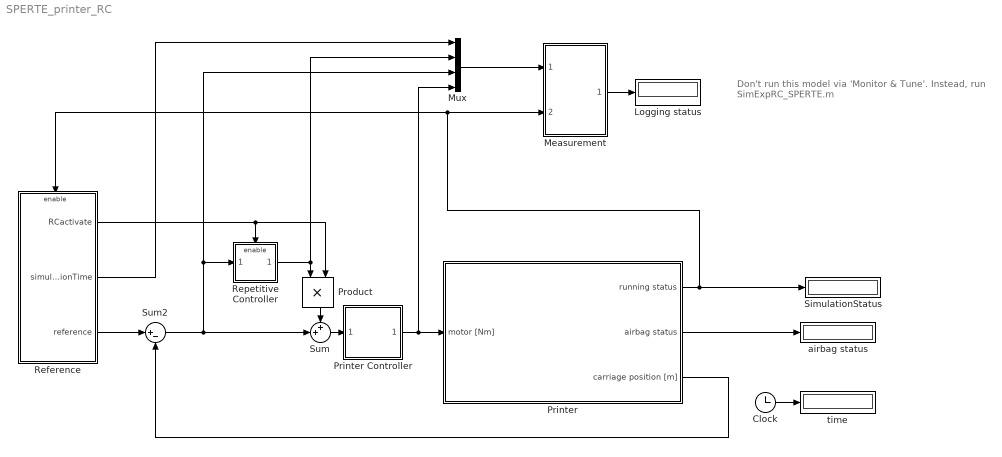
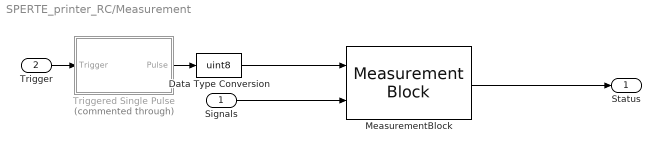
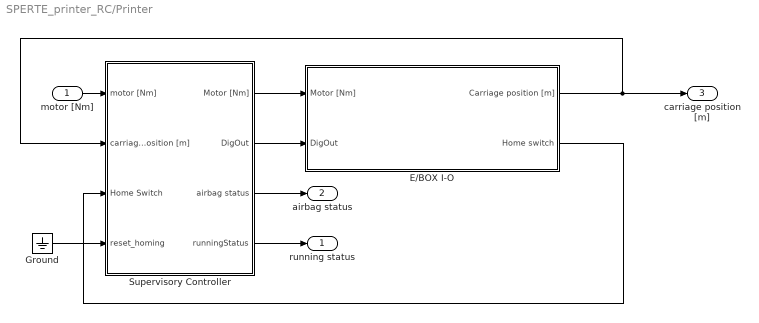
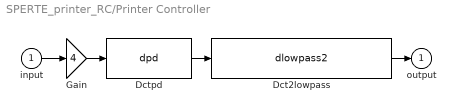
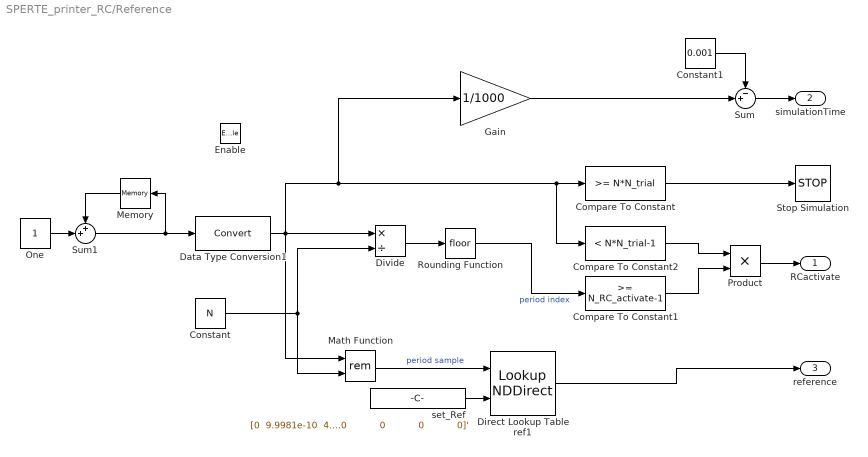
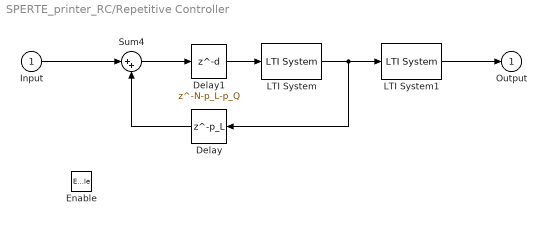
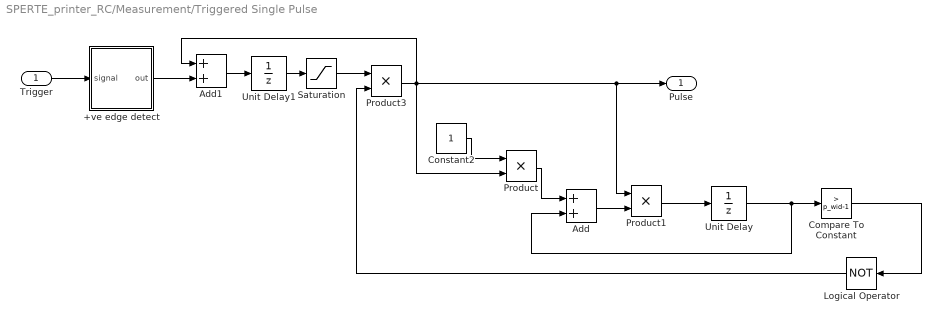
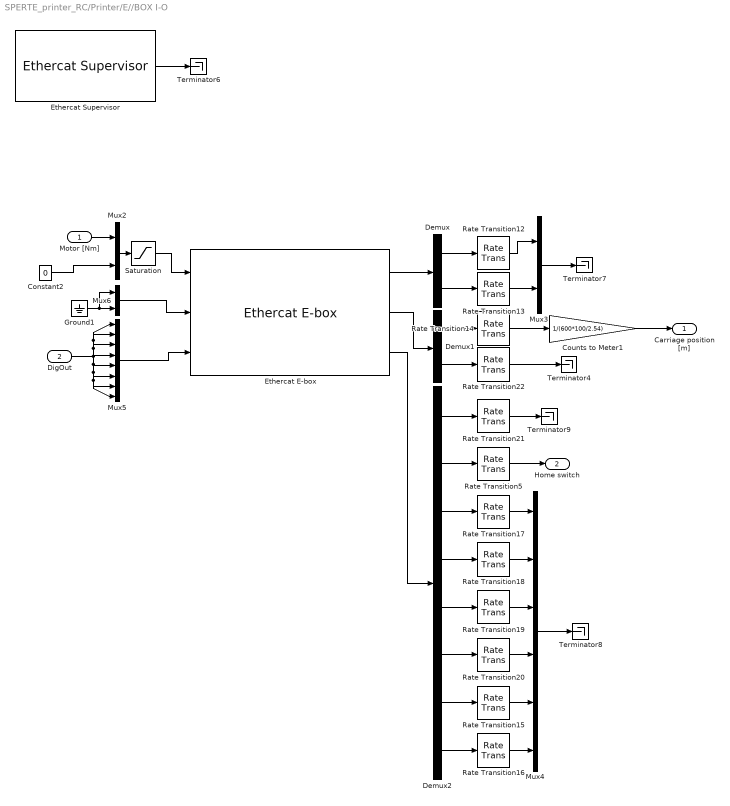
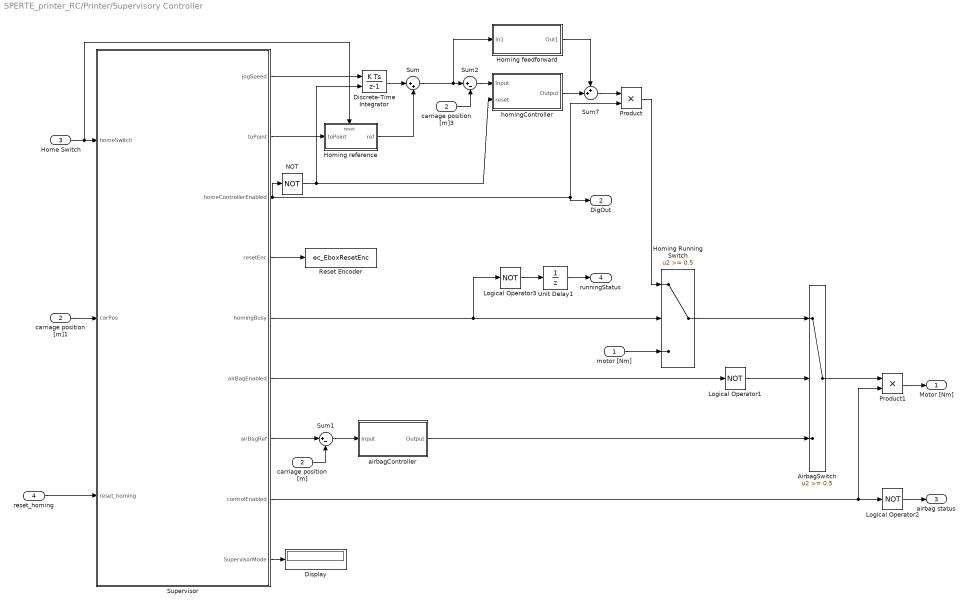
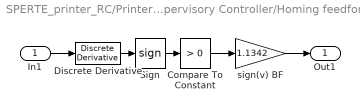
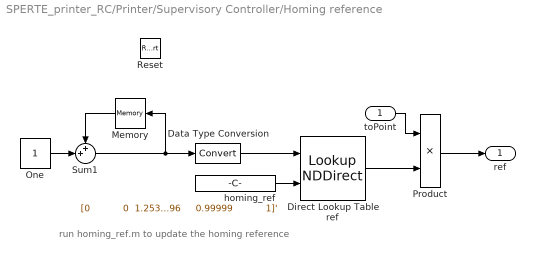
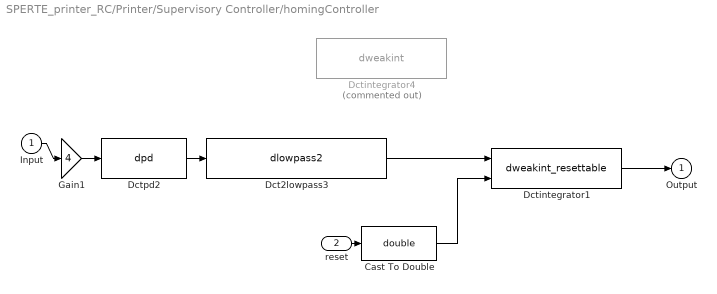
== system SPERTE_printer_RC/Measurement/Triggered Single Pulse/+ve edge detect ==
  note: Edge
  signal : Inport
  Delay Input1 : UnitDelay  Description=Store in Global RAM  DisableCoverage=on  SampleTime=-1  HasFrameUpgradeWarning=on
  FixPt Relational Operator : RelationalOperator  Operator=>  OutDataTypeStr=fixdt(0, 8)  ZeroCross=off  InputSameDT=off
  Positive : simulink/Logic and Bit Operations/Compare To Zero  relop=>  OutDataTypeStr=uint8  ZeroCross=off
  out : Outport
  wires:
  Delay Input1/1 -> FixPt Relational Operator/2  "U(k-1)"
  Positive/1 -> Delay Input1/1, FixPt Relational Operator/1  "U(k)"
  FixPt Relational Operator/1 -> out/1
  signal/1 -> Positive/1

== system SPERTE_printer_RC/Printer/Supervisory Controller/airbagController ==
  Input : Inport
  Dct2lowpass3 : S-Function  FunctionName=dlowpass2  Parameters=f_den, b_den, 0.001  SFunctionDeploymentMode=off  EnableBusSupport=off  mask(dctools){f_den=40, b_den=0.7}
      mask prompts: f_den "Pole [Hz]"; b_den "Damping pole [-]"
      mask help: This block implements a discrete time 2nd order lowpass filter.
  Dctpd2 : S-Function  FunctionName=dpd  Parameters=kp, kv, 0.001  SFunctionDeploymentMode=off  EnableBusSupport=off  mask(dctools){kp=40, kv=1}
      mask help: This block implements a discrete time pd filter.
  Gain1 : Gain  Gain=4  SaturateOnIntegerOverflow=on  OutDataTypeStr=Inherit: Same as input  ParamDataTypeStr=Inherit: Same as input
  Output : Outport
  wires:
  Input/1 -> Gain1/1
  Gain1/1 -> Dctpd2/1
  Dctpd2/1 -> Dct2lowpass3/1
  Dct2lowpass3/1 -> Output/1

== stateflow chart SPERTE_printer_RC/Printer/Supervisory Controller/Supervisor ==
  state AirbagLeft
    entry:
    airBagEnabled = 1;
    airBagRef=-0.01;
  state DisableOutputs
    entry:
    controlEnabled=0;
  state Homing
    entry:
    %Set jog speed and homing state
    toPoint = 0;
    homingBusy = 1;
    jogSpeed = -0.2;
    homeControllerEnabled=1;
  state AirbagRight
    entry:
    airBagEnabled = 1;
    airBagRef=0.35;
  state EnableRunAndSafety
    entry:
    resetEnc=0;
    homingBusy=0;
  state MovetoX0
    entry:
    jogSpeed = 0.0;
    toPoint = 0.06;
  state ResetEnc
    entry:
    resetEnc=1;
  state DisableControl
    entry:
    homeControllerEnabled=0;
  (default) -> Homing
  AirbagLeft -> DisableOutputs : after(1,sec)
  AirbagRight -> DisableOutputs : after(1,sec)
  EnableRunAndSafety -> Homing [order 1] : [reset_homing]
  EnableRunAndSafety -> AirbagLeft [order 2] : [carPos<-0.01]
  Homing -> MovetoX0 : %Transition if homeswitch becomes high [homeSwitch]
  EnableRunAndSafety -> AirbagRight [order 3] : [carPos>0.35]
  ResetEnc -> EnableRunAndSafety : after(0.1,sec)
  MovetoX0 -> DisableControl : %Allow time for moving after(1,sec)
  DisableControl -> ResetEnc : %Allow settling of belt after(0.5,sec)
  data: jogSpeed output double; toPoint output double; homeControllerEnabled output double; resetEnc output double; homingBusy output double =1; homeSwitch input double; carPos input double; airBagEnabled output double =0; airBagRef output double =0; controlEnabled output double =1; reset_homing input; SupervisorMode output Enum: SupervisorModeType

/*
 * SPERTE_printer_RC.c
 *
 * Academic License - for use in teaching, academic research, and meeting
 * course requirements at degree granting institutions only.  Not for
 * government, commercial, or other organizational use.
 *
 * Code generation for model "SPERTE_printer_RC".
 *
 * Model version              : 13.1
 * Simulink Coder version : 25.2 (R2025b) 28-Jul-2025
 * C source code generated on : Wed Apr 29 17:28:11 2026
 *
 * Target selection: ert.tlc
 * Note: GRT includes extra infrastructure and instrumentation for prototyping
 * Embedded hardware selection: ARM Compatible->ARM Cortex-A (64-bit)
 * Code generation objectives: Unspecified
 * Validation result: Not run
 */

#include "SPERTE_printer_RC.h"
#include "SPERTE_printer_RC_types.h"
#include "rtwtypes.h"
#include <stddef.h>
#include "SPERTE_printer_RC_private.h"
#include <math.h>
#include "rt_nonfinite.h"
#include <string.h>
#include <stdio.h>
#include <stdlib.h>
#include "zero_crossing_types.h"
#include <float.h>

/* Named constants for MATLAB Function: '<S6>/SPERTE_measurement_function' */
#define SPERTE_printer_RC_CALL_EVENT   (-1)

/* Block signals (default storage) */
B_SPERTE_printer_RC_T SPERTE_printer_RC_B;

/* Block states (default storage) */
DW_SPERTE_printer_RC_T SPERTE_printer_RC_DW;

/* Previous zero-crossings (trigger) states */
PrevZCX_SPERTE_printer_RC_T SPERTE_printer_RC_PrevZCX;

/* Real-time model */
static RT_MODEL_SPERTE_printer_RC_T SPERTE_printer_RC_M_;
RT_MODEL_SPERTE_printer_RC_T *const SPERTE_printer_RC_M = &SPERTE_printer_RC_M_;

/* Forward declaration for local functions */
static void SPERTE_printer_R_emxInit_char_T(emxArray_char_T_SPERTE_printe_T
  **pEmxArray, int32_T numDimensions);
static void SPERTE_emxEnsureCapacity_char_T(emxArray_char_T_SPERTE_printe_T
  *emxArray, int32_T oldNumel);
static void SPERTE_printer_R_emxFree_char_T(emxArray_char_T_SPERTE_printe_T
  **pEmxArray);
static int8_T SPERTE_printer_RC_filedata(void);
static int8_T SPERTE_printer_RC_cfopen(const emxArray_char_T_SPERTE_printe_T
  *cfilename, const char_T *cpermission);
static int32_T SPERTE_printer_RC_cfclose(real_T fid);
real_T rt_remd_snf(real_T u0, real_T u1)
{
  real_T q;
  real_T y;
  if (rtIsNaN(u0) || rtIsNaN(u1) || rtIsInf(u0)) {
    y = (rtNaN);
  } else if (rtIsInf(u1)) {
    y = u0;
  } else {
    if (u1 < 0.0) {
      q = ceil(u1);
    } else {
      q = floor(u1);
    }

    if ((u1 != 0.0) && (u1 != q)) {
      q = fabs(u0 / u1);
      if (!(fabs(q - floor(q + 0.5)) > DBL_EPSILON * q)) {
        y = 0.0 * u0;
      } else {
        y = fmod(u0, u1);
      }
    } else {
      y = fmod(u0, u1);
    }
  }

  return y;
}

static void SPERTE_printer_R_emxInit_char_T(emxArray_char_T_SPERTE_printe_T
  **pEmxArray, int32_T numDimensions)
{
  emxArray_char_T_SPERTE_printe_T *emxArray;
  int32_T i;
  *pEmxArray = (emxArray_char_T_SPERTE_printe_T *)malloc(sizeof
    (emxArray_char_T_SPERTE_printe_T));
  emxArray = *pEmxArray;
  emxArray->data = (char_T *)NULL;
  emxArray->numDimensions = numDimensions;
  emxArray->size = (int32_T *)malloc(sizeof(int32_T) * (uint32_T)numDimensions);
  emxArray->allocatedSize = 0;
  emxArray->canFreeData = true;
  for (i = 0; i < numDimensions; i++) {
    emxArray->size[i] = 0;
  }
}

static void SPERTE_emxEnsureCapacity_char_T(emxArray_char_T_SPERTE_printe_T
  *emxArray, int32_T oldNumel)
{
  int32_T i;
  int32_T newNumel;
  void *newData;
  if (oldNumel < 0) {
    oldNumel = 0;
  }

  newNumel = 1;
  for (i = 0; i < emxArray->numDimensions; i++) {
    newNumel *= emxArray->size[i];
  }

  if (newNumel > emxArray->allocatedSize) {
    i = emxArray->allocatedSize;
    if (i < 16) {
      i = 16;
    }

    while (i < newNumel) {
      if (i > 1073741823) {
        i = MAX_int32_T;
      } else {
        i <<= 1;
      }
    }

    newData = malloc((uint32_T)i * sizeof(char_T));
    if (emxArray->data != NULL) {
      memcpy(newData, emxArray->data, sizeof(char_T) * (uint32_T)oldNumel);
      if (emxArray->canFreeData) {
        free(emxArray->data);
      }
    }

    emxArray->data = (char_T *)newData;
    emxArray->allocatedSize = i;
    emxArray->canFreeData = true;
  }
}

static void SPERTE_printer_R_emxFree_char_T(emxArray_char_T_SPERTE_printe_T
  **pEmxArray)
{
  if (*pEmxArray != (emxArray_char_T_SPERTE_printe_T *)NULL) {
    if (((*pEmxArray)->data != (char_T *)NULL) && (*pEmxArray)->canFreeData) {
      free((*pEmxArray)->data);
    }

    free((*pEmxArray)->size);
    free(*pEmxArray);
    *pEmxArray = (emxArray_char_T_SPERTE_printe_T *)NULL;
  }
}

/* Function for MATLAB Function: '<S6>/SPERTE_measurement_function' */
static int8_T SPERTE_printer_RC_filedata(void)
{
  int32_T k;
  int8_T f;
  boolean_T exitg1;
  f = 0;
  k = 1;
  exitg1 = false;
  while ((!exitg1) && (k - 1 < 20)) {
    if (SPERTE_printer_RC_DW.eml_openfiles[(int8_T)k - 1] == NULL) {
      f = (int8_T)k;
      exitg1 = true;
    } else {
      k++;
    }
  }

  return f;
}

/* Function for MATLAB Function: '<S6>/SPERTE_measurement_function' */
static int8_T SPERTE_printer_RC_cfopen(const emxArray_char_T_SPERTE_printe_T
  *cfilename, const char_T *cpermission)
{
  FILE *filestar;
  emxArray_char_T_SPERTE_printe_T *ccfilename;
  int32_T loop_ub;
  int8_T fileid;
  int8_T j;
  fileid = -1;
  j = SPERTE_printer_RC_filedata();
  if (j >= 1) {
    SPERTE_printer_R_emxInit_char_T(&ccfilename, 2);
    loop_ub = ccfilename->size[0] * ccfilename->size[1];
    ccfilename->size[0] = 1;
    ccfilename->size[1] = cfilename->size[1] + 1;
    SPERTE_emxEnsureCapacity_char_T(ccfilename, loop_ub);
    loop_ub = cfilename->size[1];
    if (loop_ub - 1 >= 0) {
      memcpy(&ccfilename->data[0], &cfilename->data[0], (uint32_T)loop_ub *
             sizeof(char_T));
    }

    ccfilename->data[cfilename->size[1]] = '\x00';
    filestar = fopen(&ccfilename->data[0], cpermission);
    SPERTE_printer_R_emxFree_char_T(&ccfilename);
    if (filestar != NULL) {
      SPERTE_printer_RC_DW.eml_openfiles[j - 1] = filestar;
      SPERTE_printer_RC_DW.eml_autoflush[j - 1] = true;
      loop_ub = j + 2;
      if (j + 2 > 127) {
        loop_ub = 127;
      }

      fileid = (int8_T)loop_ub;
    }
  }

  return fileid;
}

/* Function for MATLAB Function: '<S6>/SPERTE_measurement_function' */
static int32_T SPERTE_printer_RC_cfclose(real_T fid)
{
  FILE *f;
  int32_T cst;
  int32_T st;
  int8_T b_fileid;
  int8_T fileid;
  st = -1;
  fileid = (int8_T)fid;
  if (((int8_T)fid < 0) || (fid != (int8_T)fid)) {
    fileid = -1;
  }

  b_fileid = fileid;
  if (fileid < 0) {
    b_fileid = -1;
  }

  if (b_fileid >= 3) {
    f = SPERTE_printer_RC_DW.eml_openfiles[b_fileid - 3];
  } else if (b_fileid == 0) {
    f = stdin;
  } else if (b_fileid == 1) {
    f = stdout;
  } else if (b_fileid == 2) {
    f = stderr;
  } else {
    f = NULL;
  }

  if ((f != NULL) && (fileid >= 3)) {
    cst = fclose(f);
    if (cst == 0) {
      st = 0;
      SPERTE_printer_RC_DW.eml_openfiles[fileid - 3] = NULL;
      SPERTE_printer_RC_DW.eml_autoflush[fileid - 3] = true;
    }
  }

  return st;
}

/* Model step function */
void SPERTE_printer_RC_step(void)
{
  /* local block i/o variables */
  real_T rtb_TSamp;
  real_T rtb_Delay1;
  real_T rtb_Internal;
  boolean_T rtb_NOT;
  boolean_T rtb_LogicalOperator3;
  FILE *f;
  size_t bytesOutSizet;
  emxArray_char_T_SPERTE_printe_T *str;
  emxArray_char_T_SPERTE_printe_T *str_0;
  real_T rtb_Delay;
  real_T rtb_Sum2;
  int32_T i;
  int32_T tmp;
  real32_T xout[4];
  int8_T b_fileid;
  boolean_T autoflush;

  /* Reset subsysRan breadcrumbs */
  srClearBC(SPERTE_printer_RC_DW.Reference_SubsysRanBC);

  /* Reset subsysRan breadcrumbs */
  srClearBC(SPERTE_printer_RC_DW.RepetitiveController_SubsysRanB);

  /* S-Function (ec_Supervisor): '<S11>/S-Function' */

  /* Level2 S-Function Block: '<S11>/S-Function' (ec_Supervisor) */
  {
    SimStruct *rts = SPERTE_printer_RC_M->childSfunctions[0];
    sfcnOutputs(rts,0);
  }

  /* S-Function (ec_Ebox): '<S10>/ec_Ebox' */

  /* Level2 S-Function Block: '<S10>/ec_Ebox' (ec_Ebox) */
  {
    SimStruct *rts = SPERTE_printer_RC_M->childSfunctions[1];
    sfcnOutputs(rts,0);
  }

  /* Gain: '<S10>/Gain' */
  SPERTE_printer_RC_B.Gain[0] = SPERTE_printer_RC_P.Gain_Gain_k * 0.0;
  SPERTE_printer_RC_B.Gain[1] = SPERTE_printer_RC_P.Gain_Gain_k * 0.0;

  /* Gain: '<S8>/Counts to Meter1' */
  SPERTE_printer_RC_B.CountstoMeter1 = SPERTE_printer_RC_P.CountstoMeter1_Gain *
    SPERTE_printer_RC_B.ec_Ebox_o2[0];

  /* RateTransition: '<S8>/Rate Transition5' */
  SPERTE_printer_RC_B.RateTransition5 = SPERTE_printer_RC_B.ec_Ebox_o3[1];

  /* Chart: '<S9>/Supervisor' */
  if (SPERTE_printer_RC_DW.temporalCounter_i1 < 1023) {
    SPERTE_printer_RC_DW.temporalCounter_i1++;
  }

  SPERTE_printer_RC_DW.sfEvent = SPERTE_printer_RC_CALL_EVENT;
  if (SPERTE_printer_RC_DW.is_active_c1_SPERTE_printer_RC == 0) {
    SPERTE_printer_RC_DW.is_active_c1_SPERTE_printer_RC = 1U;
    SPERTE_printer_RC_B.SupervisorMode = SupervisorModeType_Homing;

    /* Set jog speed and homing state */
    SPERTE_printer_RC_B.toPoint = 0.0;
    SPERTE_printer_RC_B.homingBusy = 1.0;
    SPERTE_printer_RC_B.jogSpeed = -0.2;
    SPERTE_printer_RC_B.homeControllerEnabled = 1.0;
  } else {
    switch (SPERTE_printer_RC_B.SupervisorMode) {
     case SupervisorModeType_AirbagLeft:
      SPERTE_printer_RC_B.airBagEnabled = 1.0;
      SPERTE_printer_RC_B.airBagRef = -0.01;
      if (SPERTE_printer_RC_DW.temporalCounter_i1 >= 1000) {
        SPERTE_printer_RC_B.SupervisorMode = SupervisorModeType_DisableOutputs;
        SPERTE_printer_RC_B.controlEnabled = 0.0;
      }
      break;

     case SupervisorModeType_AirbagRight:
      SPERTE_printer_RC_B.airBagEnabled = 1.0;
      SPERTE_printer_RC_B.airBagRef = 0.35;
      if (SPERTE_printer_RC_DW.temporalCounter_i1 >= 1000) {
        SPERTE_printer_RC_B.SupervisorMode = SupervisorModeType_DisableOutputs;
        SPERTE_printer_RC_B.controlEnabled = 0.0;
      }
      break;

     case SupervisorModeType_DisableControl:
      SPERTE_printer_RC_B.homeControllerEnabled = 0.0;

      /* Allow settling of belt */
      if (SPERTE_printer_RC_DW.temporalCounter_i1 >= 500) {
        SPERTE_printer_RC_DW.temporalCounter_i1 = 0U;
        SPERTE_printer_RC_B.SupervisorMode = SupervisorModeType_ResetEnc;
        SPERTE_printer_RC_B.resetEnc = 1.0;
      }
      break;

     case SupervisorModeType_DisableOutputs:
      SPERTE_printer_RC_B.controlEnabled = 0.0;
      break;

     case SupervisorModeType_EnableRunAndSafety:
      SPERTE_printer_RC_B.resetEnc = 0.0;
      SPERTE_printer_RC_B.homingBusy = 0.0;
      if (SPERTE_printer_RC_B.CountstoMeter1 < -0.01) {
        SPERTE_printer_RC_DW.temporalCounter_i1 = 0U;
        SPERTE_printer_RC_B.SupervisorMode = SupervisorModeType_AirbagLeft;
        SPERTE_printer_RC_B.airBagEnabled = 1.0;
        SPERTE_printer_RC_B.airBagRef = -0.01;
      } else if (SPERTE_printer_RC_B.CountstoMeter1 > 0.35) {
        SPERTE_printer_RC_DW.temporalCounter_i1 = 0U;
        SPERTE_printer_RC_B.SupervisorMode = SupervisorModeType_AirbagRight;
        SPERTE_printer_RC_B.airBagEnabled = 1.0;
        SPERTE_printer_RC_B.airBagRef = 0.35;
      }
      break;

     case SupervisorModeType_Homing:
      SPERTE_printer_RC_B.toPoint = 0.0;
      SPERTE_printer_RC_B.homingBusy = 1.0;
      SPERTE_printer_RC_B.jogSpeed = -0.2;
      SPERTE_printer_RC_B.homeControllerEnabled = 1.0;

      /* Transition if homeswitch becomes high */
      if (SPERTE_printer_RC_B.RateTransition5 != 0.0) {
        SPERTE_printer_RC_DW.temporalCounter_i1 = 0U;
        SPERTE_printer_RC_B.SupervisorMode = SupervisorModeType_MovetoX0;
        SPERTE_printer_RC_B.jogSpeed = 0.0;
        SPERTE_printer_RC_B.toPoint = 0.06;
      }
      break;

     case SupervisorModeType_MovetoX0:
      SPERTE_printer_RC_B.jogSpeed = 0.0;
      SPERTE_printer_RC_B.toPoint = 0.06;

      /* Allow time for moving */
      if (SPERTE_printer_RC_DW.temporalCounter_i1 >= 1000) {
        SPERTE_printer_RC_DW.temporalCounter_i1 = 0U;
        SPERTE_printer_RC_B.SupervisorMode = SupervisorModeType_DisableControl;
        SPERTE_printer_RC_B.homeControllerEnabled = 0.0;
      }
      break;

     default:
      /* State ResetEnc */
      SPERTE_printer_RC_B.resetEnc = 1.0;
      if (SPERTE_printer_RC_DW.temporalCounter_i1 >= 100) {
        SPERTE_printer_RC_B.SupervisorMode =
          SupervisorModeType_EnableRunAndSafety;
        SPERTE_printer_RC_B.resetEnc = 0.0;
        SPERTE_printer_RC_B.homingBusy = 0.0;
      }
      break;
    }
  }

  /* End of Chart: '<S9>/Supervisor' */

  /* UnitDelay: '<S9>/Unit Delay1' */
  SPERTE_printer_RC_B.UnitDelay1 = SPERTE_printer_RC_DW.UnitDelay1_DSTATE;

  /* Outputs for Enabled SubSystem: '<Root>/Reference' incorporates:
   *  EnablePort: '<S4>/Enable'
   */
  if (SPERTE_printer_RC_B.UnitDelay1) {
    if (!SPERTE_printer_RC_DW.Reference_MODE) {
      /* InitializeConditions for Sum: '<S4>/Sum1' incorporates:
       *  Memory: '<S4>/Memory'
       */
      SPERTE_printer_RC_DW.Memory_PreviousInput =
        SPERTE_printer_RC_P.Memory_InitialCondition_c;
      SPERTE_printer_RC_DW.Reference_MODE = true;
    }

    /* Sum: '<S4>/Sum1' incorporates:
     *  Constant: '<S4>/One'
     *  Memory: '<S4>/Memory'
     */
    SPERTE_printer_RC_DW.Memory_PreviousInput += SPERTE_printer_RC_P.One_Value_h;

    /* LookupNDDirect: '<S4>/Direct Lookup Table ref1' incorporates:
     *  Constant: '<S4>/Constant'
     *  Math: '<S4>/Math Function'
     *
     * About '<S4>/Direct Lookup Table ref1':
     *  1-dimensional Direct Look-Up returning a Scalar,
     *
     *     Remove protection against out-of-range input in generated code: 'off'
     *   */
    rtb_Delay = rt_remd_snf(SPERTE_printer_RC_DW.Memory_PreviousInput,
      SPERTE_printer_RC_P.N);
    if (rtb_Delay > 1807.0) {
      rtb_Delay = 1807.0;
    } else if (rtb_Delay < 0.0) {
      rtb_Delay = 0.0;
    }

    /* LookupNDDirect: '<S4>/Direct Lookup Table ref1' incorporates:
     *  Constant: '<S4>/set_Ref'
     *
     * About '<S4>/Direct Lookup Table ref1':
     *  1-dimensional Direct Look-Up returning a Scalar,
     *
     *     Remove protection against out-of-range input in generated code: 'off'
     *   */
    SPERTE_printer_RC_B.DirectLookupTableref1 =
      SPERTE_printer_RC_P.set_Ref_Value[(int32_T)rtb_Delay];

    /* Product: '<S4>/Product' incorporates:
     *  Constant: '<S20>/Constant'
     *  Constant: '<S21>/Constant'
     *  Constant: '<S4>/Constant'
     *  Product: '<S4>/Divide'
     *  RelationalOperator: '<S20>/Compare'
     *  RelationalOperator: '<S21>/Compare'
     *  Rounding: '<S4>/Rounding Function'
     */
    SPERTE_printer_RC_B.Product = (uint16_T)
      (SPERTE_printer_RC_DW.Memory_PreviousInput < SPERTE_printer_RC_P.N *
       SPERTE_printer_RC_P.N_trial - 1.0 ? floor
       (SPERTE_printer_RC_DW.Memory_PreviousInput / SPERTE_printer_RC_P.N) >=
       SPERTE_printer_RC_P.N_RC_activate - 1.0 : 0);

    /* Stop: '<S4>/Stop Simulation' incorporates:
     *  Constant: '<S19>/Constant'
     *  RelationalOperator: '<S19>/Compare'
     */
    if (SPERTE_printer_RC_DW.Memory_PreviousInput >= SPERTE_printer_RC_P.N *
        SPERTE_printer_RC_P.N_trial) {
      rtmSetStopRequested(SPERTE_printer_RC_M, 1);
    }

    /* End of Stop: '<S4>/Stop Simulation' */

    /* Sum: '<S4>/Sum' incorporates:
     *  Constant: '<S4>/Constant1'
     *  Gain: '<S4>/Gain'
     */
    SPERTE_printer_RC_B.Sum = SPERTE_printer_RC_P.Gain_Gain *
      SPERTE_printer_RC_DW.Memory_PreviousInput -
      SPERTE_printer_RC_P.Constant1_Value;
    srUpdateBC(SPERTE_printer_RC_DW.Reference_SubsysRanBC);
  } else {
    SPERTE_printer_RC_DW.Reference_MODE = false;
  }

  /* End of Outputs for SubSystem: '<Root>/Reference' */

  /* Sum: '<Root>/Sum2' */
  rtb_Sum2 = SPERTE_printer_RC_B.DirectLookupTableref1 -
    SPERTE_printer_RC_B.CountstoMeter1;

  /* Outputs for Enabled SubSystem: '<Root>/Repetitive Controller' incorporates:
   *  EnablePort: '<S5>/Enable'
   */
  if (SPERTE_printer_RC_B.Product > 0) {
    if (!SPERTE_printer_RC_DW.RepetitiveController_MODE) {
      /* InitializeConditions for Delay: '<S5>/Delay' */
      SPERTE_printer_RC_DW.Delay_DSTATE[0] =
        SPERTE_printer_RC_P.Delay_InitialCondition;
      SPERTE_printer_RC_DW.Delay_DSTATE[1] =
        SPERTE_printer_RC_P.Delay_InitialCondition;
      SPERTE_printer_RC_DW.Delay_DSTATE[2] =
        SPERTE_printer_RC_P.Delay_InitialCondition;
      SPERTE_printer_RC_DW.Delay_DSTATE[3] =
        SPERTE_printer_RC_P.Delay_InitialCondition;

      /* InitializeConditions for Delay: '<S5>/Delay1' */
      for (i = 0; i < 1754; i++) {
        SPERTE_printer_RC_DW.Delay1_DSTATE[i] =
          SPERTE_printer_RC_P.Delay1_InitialCondition;
      }

      /* End of InitializeConditions for Delay: '<S5>/Delay1' */

      /* InitializeConditions for DiscreteStateSpace: '<S22>/Internal' */
      {
        int_T i1;
        real_T *dw_DSTATE = &SPERTE_printer_RC_DW.Internal_DSTATE[0];
        for (i1=0; i1 < 100; i1++) {
          dw_DSTATE[i1] = SPERTE_printer_RC_P.Internal_InitialCondition;
        }
      }

      /* InitializeConditions for DiscreteStateSpace: '<S23>/Internal' */
      {
        int_T i1;
        real_T *dw_DSTATE = &SPERTE_printer_RC_DW.Internal_DSTATE_l[0];
        for (i1=0; i1 < 10; i1++) {
          dw_DSTATE[i1] = SPERTE_printer_RC_P.Internal_InitialCondition_g;
        }
      }

      SPERTE_printer_RC_DW.RepetitiveController_MODE = true;
    }

    /* Delay: '<S5>/Delay' */
    rtb_Delay = SPERTE_printer_RC_DW.Delay_DSTATE[0];

    /* Delay: '<S5>/Delay1' */
    rtb_Delay1 = SPERTE_printer_RC_DW.Delay1_DSTATE[0];

    /* DiscreteStateSpace: '<S22>/Internal' */
    {
      rtb_Internal = SPERTE_printer_RC_P.Internal_D*rtb_Delay1;

      {
        int_T nx = 100;
        const real_T *x = &SPERTE_printer_RC_DW.Internal_DSTATE[0];
        const real_T *Cmtx = SPERTE_printer_RC_P.Internal_C;
        while (nx--) {
          rtb_Internal += (*Cmtx) * (*x++);
          Cmtx += 1;
        }
      }
    }

    /* DiscreteStateSpace: '<S23>/Internal' */
    {
      {
        static const int_T colCidxRow0[10] = { 0, 1, 2, 3, 4, 5, 6, 7, 8, 9 };

        const int_T *pCidx = &colCidxRow0[0];
        const real_T *pC0 = SPERTE_printer_RC_P.Internal_C_m;
        const real_T *xd = &SPERTE_printer_RC_DW.Internal_DSTATE_l[0];
        real_T *y0 = &SPERTE_printer_RC_B.Internal;
        int_T numNonZero = 9;
        *y0 = (*pC0++) * xd[*pCidx++];
        while (numNonZero--) {
          *y0 += (*pC0++) * xd[*pCidx++];
        }
      }

      SPERTE_printer_RC_B.Internal += SPERTE_printer_RC_P.Internal_D_m*
        rtb_Internal;
    }

    /* Update for Delay: '<S5>/Delay' */
    SPERTE_printer_RC_DW.Delay_DSTATE[0] = SPERTE_printer_RC_DW.Delay_DSTATE[1];
    SPERTE_printer_RC_DW.Delay_DSTATE[1] = SPERTE_printer_RC_DW.Delay_DSTATE[2];
    SPERTE_printer_RC_DW.Delay_DSTATE[2] = SPERTE_printer_RC_DW.Delay_DSTATE[3];
    SPERTE_printer_RC_DW.Delay_DSTATE[3] = rtb_Internal;

    /* Update for Delay: '<S5>/Delay1' incorporates:
     *  Sum: '<S5>/Sum4'
     */
    for (i = 0; i < 1753; i++) {
      SPERTE_printer_RC_DW.Delay1_DSTATE[i] =
        SPERTE_printer_RC_DW.Delay1_DSTATE[i + 1];
    }

    SPERTE_printer_RC_DW.Delay1_DSTATE[1753] = rtb_Sum2 + rtb_Delay;

    /* End of Update for Delay: '<S5>/Delay1' */

    /* Update for DiscreteStateSpace: '<S22>/Internal' */
    {
      int_T i;
      const real_T *Amtx = SPERTE_printer_RC_P.Internal_A;
      real_T *x = &SPERTE_printer_RC_DW.Internal_DSTATE[0];
      real_T xtmp = rtb_Delay1;
      for (i=99; i>0; i--) {
        xtmp += Amtx[i]*x[i];
        x[i] = x[i-1];
      }

      x[0] = xtmp + Amtx[0]*x[0];
    }

    /* Update for DiscreteStateSpace: '<S23>/Internal' */
    {
      real_T xnew[10];
      xnew[0] = (SPERTE_printer_RC_P.Internal_A_f[0])*
        SPERTE_printer_RC_DW.Internal_DSTATE_l[0]
        + (SPERTE_printer_RC_P.Internal_A_f[1])*
        SPERTE_printer_RC_DW.Internal_DSTATE_l[1];
      xnew[0] += (SPERTE_printer_RC_P.Internal_B[0])*rtb_Internal;
      xnew[1] = (SPERTE_printer_RC_P.Internal_A_f[2])*
        SPERTE_printer_RC_DW.Internal_DSTATE_l[0];
      xnew[2] = (SPERTE_printer_RC_P.Internal_A_f[3])*
        SPERTE_printer_RC_DW.Internal_DSTATE_l[0]
        + (SPERTE_printer_RC_P.Internal_A_f[4])*
        SPERTE_printer_RC_DW.Internal_DSTATE_l[1];
      xnew[2] += (SPERTE_printer_RC_P.Internal_B[1])*rtb_Internal;
      xnew[3] = (SPERTE_printer_RC_P.Internal_A_f[5])*
        SPERTE_printer_RC_DW.Internal_DSTATE_l[2];
      xnew[4] = (SPERTE_printer_RC_P.Internal_A_f[6])*
        SPERTE_printer_RC_DW.Internal_DSTATE_l[0]
        + (SPERTE_printer_RC_P.Internal_A_f[7])*
        SPERTE_printer_RC_DW.Internal_DSTATE_l[1]
        + (SPERTE_printer_RC_P.Internal_A_f[8])*
        SPERTE_printer_RC_DW.Internal_DSTATE_l[2]
        + (SPERTE_printer_RC_P.Internal_A_f[9])*
        SPERTE_printer_RC_DW.Internal_DSTATE_l[3];
      xnew[4] += (SPERTE_printer_RC_P.Internal_B[2])*rtb_Internal;
      xnew[5] = (SPERTE_printer_RC_P.Internal_A_f[10])*
        SPERTE_printer_RC_DW.Internal_DSTATE_l[4];

      {
        static const int_T colAidxRow6[6] = { 0, 1, 2, 3, 4, 5 };

        const int_T *pAidx = &colAidxRow6[0];
        const real_T *pA11 = &SPERTE_printer_RC_P.Internal_A_f[11];
        const real_T *xd = &SPERTE_printer_RC_DW.Internal_DSTATE_l[0];
        real_T *pxnew6 = &xnew[6];
        int_T numNonZero = 5;
        *pxnew6 = (*pA11++) * xd[*pAidx++];
        while (numNonZero--) {
          *pxnew6 += (*pA11++) * xd[*pAidx++];
        }
      }

      xnew[6] += (SPERTE_printer_RC_P.Internal_B[3])*rtb_Internal;
      xnew[7] = (SPERTE_printer_RC_P.Internal_A_f[17])*
        SPERTE_printer_RC_DW.Internal_DSTATE_l[6];

      {
        static const int_T colAidxRow8[10] = { 0, 1, 2, 3, 4, 5, 6, 7, 8, 9 };

        const int_T *pAidx = &colAidxRow8[0];
        const real_T *pA18 = &SPERTE_printer_RC_P.Internal_A_f[18];
        const real_T *xd = &SPERTE_printer_RC_DW.Internal_DSTATE_l[0];
        real_T *pxnew8 = &xnew[8];
        int_T numNonZero = 9;
        *pxnew8 = (*pA18++) * xd[*pAidx++];
        while (numNonZero--) {
          *pxnew8 += (*pA18++) * xd[*pAidx++];
        }
      }

      xnew[8] += (SPERTE_printer_RC_P.Internal_B[4])*rtb_Internal;
      xnew[9] = (SPERTE_printer_RC_P.Internal_A_f[28])*
        SPERTE_printer_RC_DW.Internal_DSTATE_l[8];
      (void) memcpy(&SPERTE_printer_RC_DW.Internal_DSTATE_l[0], xnew,
                    sizeof(real_T)*10);
    }

    srUpdateBC(SPERTE_printer_RC_DW.RepetitiveController_SubsysRanB);
  } else {
    SPERTE_printer_RC_DW.RepetitiveController_MODE = false;
  }

  /* End of Outputs for SubSystem: '<Root>/Repetitive Controller' */

  /* Gain: '<S3>/Gain' incorporates:
   *  Product: '<Root>/Product'
   *  Sum: '<Root>/Sum'
   */
  SPERTE_printer_RC_B.Gain_c = (SPERTE_printer_RC_B.Internal * (real_T)
    SPERTE_printer_RC_B.Product + rtb_Sum2) * SPERTE_printer_RC_P.Gain_Gain_j;

  /* S-Function (dpd): '<S3>/Dctpd' */

  /* Level2 S-Function Block: '<S3>/Dctpd' (dpd) */
  {
    SimStruct *rts = SPERTE_printer_RC_M->childSfunctions[2];
    sfcnOutputs(rts,0);
  }

  /* S-Function (dlowpass2): '<S3>/Dct2lowpass' */

  /* Level2 S-Function Block: '<S3>/Dct2lowpass' (dlowpass2) */
  {
    SimStruct *rts = SPERTE_printer_RC_M->childSfunctions[3];
    sfcnOutputs(rts,0);
  }

  /* Logic: '<S9>/NOT' */
  rtb_NOT = !(SPERTE_printer_RC_B.homeControllerEnabled != 0.0);

  /* DiscreteIntegrator: '<S9>/Discrete-Time Integrator' */
  if (rtb_NOT || (SPERTE_printer_RC_DW.DiscreteTimeIntegrator_PrevRese != 0)) {
    SPERTE_printer_RC_DW.DiscreteTimeIntegrator_DSTATE =
      SPERTE_printer_RC_P.DiscreteTimeIntegrator_IC;
  }

  /* Outputs for Resettable SubSystem: '<S9>/Homing reference' incorporates:
   *  ResetPort: '<S13>/Reset'
   */
  if (rt_ZCFcn(RISING_ZERO_CROSSING,
               &SPERTE_printer_RC_PrevZCX.Homingreference_Reset_ZCE,
               (SPERTE_printer_RC_B.RateTransition5)) != NO_ZCEVENT) {
    /* InitializeConditions for Sum: '<S13>/Sum1' incorporates:
     *  Memory: '<S13>/Memory'
     */
    SPERTE_printer_RC_DW.Memory_PreviousInput_g =
      SPERTE_printer_RC_P.Memory_InitialCondition;
  }

  /* Sum: '<S13>/Sum1' incorporates:
   *  Constant: '<S13>/One'
   *  Memory: '<S13>/Memory'
   */
  SPERTE_printer_RC_DW.Memory_PreviousInput_g += SPERTE_printer_RC_P.One_Value;

  /* LookupNDDirect: '<S13>/Direct Lookup Table ref' incorporates:
   *  Sum: '<S13>/Sum1'
   *
   * About '<S13>/Direct Lookup Table ref':
   *  1-dimensional Direct Look-Up returning a Scalar,
   *
   *     Remove protection against out-of-range input in generated code: 'off'
   *   */
  if (SPERTE_printer_RC_DW.Memory_PreviousInput_g > 599.0) {
    rtb_Delay = 599.0;
  } else if (SPERTE_printer_RC_DW.Memory_PreviousInput_g < 0.0) {
    rtb_Delay = 0.0;
  } else {
    rtb_Delay = SPERTE_printer_RC_DW.Memory_PreviousInput_g;
  }

  /* Sum: '<S9>/Sum' incorporates:
   *  Constant: '<S13>/homing_ref'
   *  DiscreteIntegrator: '<S9>/Discrete-Time Integrator'
   *  LookupNDDirect: '<S13>/Direct Lookup Table ref'
   *  Product: '<S13>/Product'
   *
   * About '<S13>/Direct Lookup Table ref':
   *  1-dimensional Direct Look-Up returning a Scalar,
   *
   *     Remove protection against out-of-range input in generated code: 'off'
   *   */
  rtb_Delay = SPERTE_printer_RC_B.toPoint
    * SPERTE_printer_RC_P.homing_ref_Value[(int32_T)rtb_Delay] +
    SPERTE_printer_RC_DW.DiscreteTimeIntegrator_DSTATE;

  /* End of Outputs for SubSystem: '<S9>/Homing reference' */

  /* SampleTimeMath: '<S18>/TSamp'
   *
   * About '<S18>/TSamp':
   *  y = u * K where K = 1 / ( w * Ts )
   *   */
  rtb_TSamp = rtb_Delay * SPERTE_printer_RC_P.TSamp_WtEt;

  /* Gain: '<S16>/Gain1' incorporates:
   *  Sum: '<S9>/Sum2'
   */
  SPERTE_printer_RC_B.Gain1 = (rtb_Delay - SPERTE_printer_RC_B.CountstoMeter1) *
    SPERTE_printer_RC_P.Gain1_Gain;

  /* S-Function (dpd): '<S16>/Dctpd2' */

  /* Level2 S-Function Block: '<S16>/Dctpd2' (dpd) */
  {
    SimStruct *rts = SPERTE_printer_RC_M->childSfunctions[4];
    sfcnOutputs(rts,0);
  }

  /* S-Function (dlowpass2): '<S16>/Dct2lowpass3' */

  /* Level2 S-Function Block: '<S16>/Dct2lowpass3' (dlowpass2) */
  {
    SimStruct *rts = SPERTE_printer_RC_M->childSfunctions[5];
    sfcnOutputs(rts,0);
  }

  /* DataTypeConversion: '<S16>/Cast To Double' */
  SPERTE_printer_RC_B.CastToDouble = rtb_NOT;

  /* S-Function (dweakint_resettable): '<S16>/Dctintegrator1' */

  /* Level2 S-Function Block: '<S16>/Dctintegrator1' (dweakint_resettable) */
  {
    SimStruct *rts = SPERTE_printer_RC_M->childSfunctions[6];
    sfcnOutputs(rts,0);
  }

  /* Gain: '<S15>/Gain1' incorporates:
   *  Sum: '<S9>/Sum1'
   */
  SPERTE_printer_RC_B.Gain1_j = (SPERTE_printer_RC_B.airBagRef -
    SPERTE_printer_RC_B.CountstoMeter1) * SPERTE_printer_RC_P.Gain1_Gain_j;

  /* S-Function (dpd): '<S15>/Dctpd2' */

  /* Level2 S-Function Block: '<S15>/Dctpd2' (dpd) */
  {
    SimStruct *rts = SPERTE_printer_RC_M->childSfunctions[7];
    sfcnOutputs(rts,0);
  }

  /* S-Function (dlowpass2): '<S15>/Dct2lowpass3' */

  /* Level2 S-Function Block: '<S15>/Dct2lowpass3' (dlowpass2) */
  {
    SimStruct *rts = SPERTE_printer_RC_M->childSfunctions[8];
    sfcnOutputs(rts,0);
  }

  /* Switch: '<S9>/AirbagSwitch' incorporates:
   *  Logic: '<S9>/Logical Operator1'
   */
  if (!(SPERTE_printer_RC_B.airBagEnabled != 0.0)) {
    /* Switch: '<S9>/Homing Running Switch' incorporates:
     *  Constant: '<S17>/Constant'
     *  Gain: '<S12>/sign(v) BF'
     *  Product: '<S9>/Product'
     *  RelationalOperator: '<S17>/Compare'
     *  Signum: '<S12>/Sign'
     *  Sum: '<S9>/Sum7'
     */
    if (SPERTE_printer_RC_B.homingBusy >=
        SPERTE_printer_RC_P.HomingRunningSwitch_Threshold) {
      /* Sum: '<S18>/Diff' incorporates:
       *  UnitDelay: '<S18>/UD'
       */
      rtb_Delay = rtb_TSamp - SPERTE_printer_RC_DW.UD_DSTATE;

      /* Signum: '<S12>/Sign' */
      if (rtIsNaN(rtb_Delay)) {
        rtb_Delay = (rtNaN);
      } else if (rtb_Delay < 0.0) {
        rtb_Delay = -1.0;
      } else {
        rtb_Delay = (rtb_Delay > 0.0);
      }

      rtb_Delay = ((real_T)((rtb_Delay >
        SPERTE_printer_RC_P.CompareToConstant_const) *
                            SPERTE_printer_RC_P.signvBF_Gain) * 0.0078125 +
                   SPERTE_printer_RC_B.Dctintegrator1) *
        SPERTE_printer_RC_B.homeControllerEnabled;
    } else {
      rtb_Delay = SPERTE_printer_RC_B.Dct2lowpass;
    }

    /* End of Switch: '<S9>/Homing Running Switch' */
  } else {
    rtb_Delay = SPERTE_printer_RC_B.Dct2lowpass3_o;
  }

  /* End of Switch: '<S9>/AirbagSwitch' */

  /* Product: '<S9>/Product1' */
  rtb_Delay *= SPERTE_printer_RC_B.controlEnabled;

  /* Saturate: '<S8>/Saturation' */
  if (rtb_Delay > SPERTE_printer_RC_P.Saturation_UpperSat) {
    rtb_Delay = SPERTE_printer_RC_P.Saturation_UpperSat;
  } else if (rtb_Delay < SPERTE_printer_RC_P.Saturation_LowerSat) {
    rtb_Delay = SPERTE_printer_RC_P.Saturation_LowerSat;
  }

  /* Saturate: '<S10>/Saturation' */
  if (rtb_Delay > SPERTE_printer_RC_P.Saturation_UpperSat_e) {
    /* Saturate: '<S10>/Saturation' */
    SPERTE_printer_RC_B.Saturation[0] =
      SPERTE_printer_RC_P.Saturation_UpperSat_e;
  } else if (rtb_Delay < SPERTE_printer_RC_P.Saturation_LowerSat_i) {
    /* Saturate: '<S10>/Saturation' */
    SPERTE_printer_RC_B.Saturation[0] =
      SPERTE_printer_RC_P.Saturation_LowerSat_i;
  } else {
    /* Saturate: '<S10>/Saturation' */
    SPERTE_printer_RC_B.Saturation[0] = rtb_Delay;
  }

  /* Saturate: '<S8>/Saturation' incorporates:
   *  Constant: '<S8>/Constant2'
   */
  if (SPERTE_printer_RC_P.Constant2_Value >
      SPERTE_printer_RC_P.Saturation_UpperSat) {
    rtb_Delay = SPERTE_printer_RC_P.Saturation_UpperSat;
  } else if (SPERTE_printer_RC_P.Constant2_Value <
             SPERTE_printer_RC_P.Saturation_LowerSat) {
    rtb_Delay = SPERTE_printer_RC_P.Saturation_LowerSat;
  } else {
    rtb_Delay = SPERTE_printer_RC_P.Constant2_Value;
  }

  /* Saturate: '<S10>/Saturation' */
  if (rtb_Delay > SPERTE_printer_RC_P.Saturation_UpperSat_e) {
    /* Saturate: '<S10>/Saturation' */
    SPERTE_printer_RC_B.Saturation[1] =
      SPERTE_printer_RC_P.Saturation_UpperSat_e;
  } else if (rtb_Delay < SPERTE_printer_RC_P.Saturation_LowerSat_i) {
    /* Saturate: '<S10>/Saturation' */
    SPERTE_printer_RC_B.Saturation[1] =
      SPERTE_printer_RC_P.Saturation_LowerSat_i;
  } else {
    /* Saturate: '<S10>/Saturation' */
    SPERTE_printer_RC_B.Saturation[1] = rtb_Delay;
  }

  /* Outputs for Atomic SubSystem: '<Root>/Measurement' */
  /* MATLAB Function: '<S6>/SPERTE_measurement_function' incorporates:
   *  Constant: '<S6>/SPERTE_measurement_samples'
   *  Constant: '<S6>/SPERTE_measurement_trigger_command'
   *  DataTypeConversion: '<S1>/Data Type Conversion'
   *  SignalConversion generated from: '<S7>/ SFunction '
   */
  SPERTE_printer_RC_DW.sfEvent_f = SPERTE_printer_RC_CALL_EVENT;
  if ((((SPERTE_printer_RC_P.MeasurementBlock_triggertype == 0) &&
        SPERTE_printer_RC_B.UnitDelay1) ||
       ((SPERTE_printer_RC_P.MeasurementBlock_triggertype == 1) &&
        (SPERTE_printer_RC_P.MeasurementBlock_trigger_comman == 1)) ||
       ((SPERTE_printer_RC_P.MeasurementBlock_triggertype == 2) &&
        ((SPERTE_printer_RC_P.MeasurementBlock_trigger_comman == 1) ||
         SPERTE_printer_RC_B.UnitDelay1))) && (SPERTE_printer_RC_DW.busy != 1))
  {
    i = (int32_T)snprintf(NULL, 0, "measurement_%d.bin", SPERTE_printer_RC_DW.NF)
      + 1;
    SPERTE_printer_R_emxInit_char_T(&str, 2);
    tmp = str->size[0] * str->size[1];
    str->size[0] = 1;
    str->size[1] = i;
    SPERTE_emxEnsureCapacity_char_T(str, tmp);
    snprintf(&str->data[0], (size_t)i, "measurement_%d.bin",
             SPERTE_printer_RC_DW.NF);
    if (i - 1 < 1) {
      i = -1;
    } else {
      i -= 2;
    }

    SPERTE_printer_R_emxInit_char_T(&str_0, 2);
    tmp = str_0->size[0] * str_0->size[1];
    str_0->size[0] = 1;
    str_0->size[1] = i + 1;
    SPERTE_emxEnsureCapacity_char_T(str_0, tmp);
    if (i >= 0) {
      memcpy(&str_0->data[0], &str->data[0], (uint32_T)(i + 1) * sizeof(char_T));
    }

    SPERTE_printer_R_emxFree_char_T(&str);
    b_fileid = SPERTE_printer_RC_cfopen(str_0, "wb");
    SPERTE_printer_R_emxFree_char_T(&str_0);
    SPERTE_printer_RC_DW.fileID = b_fileid;
    i = SPERTE_printer_RC_DW.NF + 1;
    if (SPERTE_printer_RC_DW.NF + 1 > 32767) {
      i = 32767;
    }

    SPERTE_printer_RC_DW.NF = (int16_T)i;
    SPERTE_printer_RC_DW.busy = 1U;
    SPERTE_printer_RC_DW.NS = 0U;
  }

  if (SPERTE_printer_RC_DW.busy == 1) {
    if (SPERTE_printer_RC_DW.NS < SPERTE_printer_RC_P.MeasurementBlock_N_samples)
    {
      b_fileid = (int8_T)SPERTE_printer_RC_DW.fileID;
      if (((int8_T)SPERTE_printer_RC_DW.fileID < 0) ||
          (SPERTE_printer_RC_DW.fileID != (int8_T)SPERTE_printer_RC_DW.fileID))
      {
        b_fileid = -1;
      }

      if (b_fileid >= 3) {
        autoflush = SPERTE_printer_RC_DW.eml_autoflush[b_fileid - 3];
        f = SPERTE_printer_RC_DW.eml_openfiles[b_fileid - 3];
      } else if (b_fileid == 0) {
        f = stdin;
        autoflush = true;
      } else if (b_fileid == 1) {
        f = stdout;
        autoflush = true;
      } else if (b_fileid == 2) {
        f = stderr;
        autoflush = true;
      } else {
        f = NULL;
        autoflush = true;
      }

      if (!(SPERTE_printer_RC_DW.fileID != 0.0)) {
        f = NULL;
      }

      if (!(f == NULL)) {
        xout[0] = (real32_T)SPERTE_printer_RC_B.Sum;
        xout[1] = (real32_T)SPERTE_printer_RC_B.Internal;
        xout[2] = (real32_T)rtb_Sum2;
        xout[3] = (real32_T)SPERTE_printer_RC_B.Dct2lowpass;
        bytesOutSizet = fwrite(&xout[0], sizeof(real32_T), (size_t)4, f);
        if (((real_T)bytesOutSizet > 0.0) && autoflush) {
          fflush(f);
        }
      }

      SPERTE_printer_RC_DW.NS++;
    } else {
      SPERTE_printer_RC_cfclose(SPERTE_printer_RC_DW.fileID);
      SPERTE_printer_RC_DW.busy = 0U;
      SPERTE_printer_RC_DW.NS = 0U;
    }
  }

  SPERTE_printer_RC_B.status = SPERTE_printer_RC_DW.busy;

  /* End of MATLAB Function: '<S6>/SPERTE_measurement_function' */
  /* End of Outputs for SubSystem: '<Root>/Measurement' */
  /* Logic: '<S9>/Logical Operator2' */
  SPERTE_printer_RC_B.LogicalOperator2 = !(SPERTE_printer_RC_B.controlEnabled !=
    0.0);

  /* Logic: '<S9>/Logical Operator3' */
  rtb_LogicalOperator3 = !(SPERTE_printer_RC_B.homingBusy != 0.0);

  /* S-Function (ec_EboxResetEnc): '<S9>/Reset Encoder' */

  /* Level2 S-Function Block: '<S9>/Reset Encoder' (ec_EboxResetEnc) */
  {
    SimStruct *rts = SPERTE_printer_RC_M->childSfunctions[9];
    sfcnOutputs(rts,0);
  }

  /* Clock: '<Root>/Clock' */
  SPERTE_printer_RC_B.Clock = SPERTE_printer_RC_M->Timing.t[0];

  /* Update for UnitDelay: '<S9>/Unit Delay1' */
  SPERTE_printer_RC_DW.UnitDelay1_DSTATE = rtb_LogicalOperator3;

  /* Update for DiscreteIntegrator: '<S9>/Discrete-Time Integrator' */
  SPERTE_printer_RC_DW.DiscreteTimeIntegrator_DSTATE +=
    SPERTE_printer_RC_P.DiscreteTimeIntegrator_gainval *
    SPERTE_printer_RC_B.jogSpeed;
  SPERTE_printer_RC_DW.DiscreteTimeIntegrator_PrevRese = (int8_T)rtb_NOT;

  /* Update for UnitDelay: '<S18>/UD' */
  SPERTE_printer_RC_DW.UD_DSTATE = rtb_TSamp;

  {                                    /* Sample time: [0.001s, 0.0s] */
    extmodeErrorCode_T errorCode = EXTMODE_SUCCESS;
    extmodeSimulationTime_T extmodeTime = (extmodeSimulationTime_T)
      SPERTE_printer_RC_M->Timing.t[1];

    /* Trigger External Mode event */
    errorCode = extmodeEvent(1, extmodeTime);
    if (errorCode != EXTMODE_SUCCESS) {
      /* Code to handle External Mode event errors
         may be added here */
    }
  }

  /* Update absolute time for base rate */
  /* The "clockTick0" counts the number of times the code of this task has
   * been executed. The absolute time is the multiplication of "clockTick0"
   * and "Timing.stepSize0". Size of "clockTick0" ensures timer will not
   * overflow during the application lifespan selected.
   * Timer of this task consists of two 32 bit unsigned integers.
   * The two integers represent the low bits Timing.clockTick0 and the high bits
   * Timing.clockTickH0. When the low bit overflows to 0, the high bits increment.
   */
  if (!(++SPERTE_printer_RC_M->Timing.clockTick0)) {
    ++SPERTE_printer_RC_M->Timing.clockTickH0;
  }

  SPERTE_printer_RC_M->Timing.t[0] = SPERTE_printer_RC_M->Timing.clockTick0 *
    SPERTE_printer_RC_M->Timing.stepSize0 +
    SPERTE_printer_RC_M->Timing.clockTickH0 *
    SPERTE_printer_RC_M->Timing.stepSize0 * 4294967296.0;

  {
    /* Update absolute timer for sample time: [0.001s, 0.0s] */
    /* The "clockTick1" counts the number of times the code of this task has
     * been executed. The absolute time is the multiplication of "clockTick1"
     * and "Timing.stepSize1". Size of "clockTick1" ensures timer will not
     * overflow during the application lifespan selected.
     * Timer of this task consists of two 32 bit unsigned integers.
     * The two integers represent the low bits Timing.clockTick1 and the high bits
     * Timing.clockTickH1. When the low bit overflows to 0, the high bits increment.
     */
    if (!(++SPERTE_printer_RC_M->Timing.clockTick1)) {
      ++SPERTE_printer_RC_M->Timing.clockTickH1;
    }

    SPERTE_printer_RC_M->Timing.t[1] = SPERTE_printer_RC_M->Timing.clockTick1 *
      SPERTE_printer_RC_M->Timing.stepSize1 +
      SPERTE_printer_RC_M->Timing.clockTickH1 *
      SPERTE_printer_RC_M->Timing.stepSize1 * 4294967296.0;
  }
}
